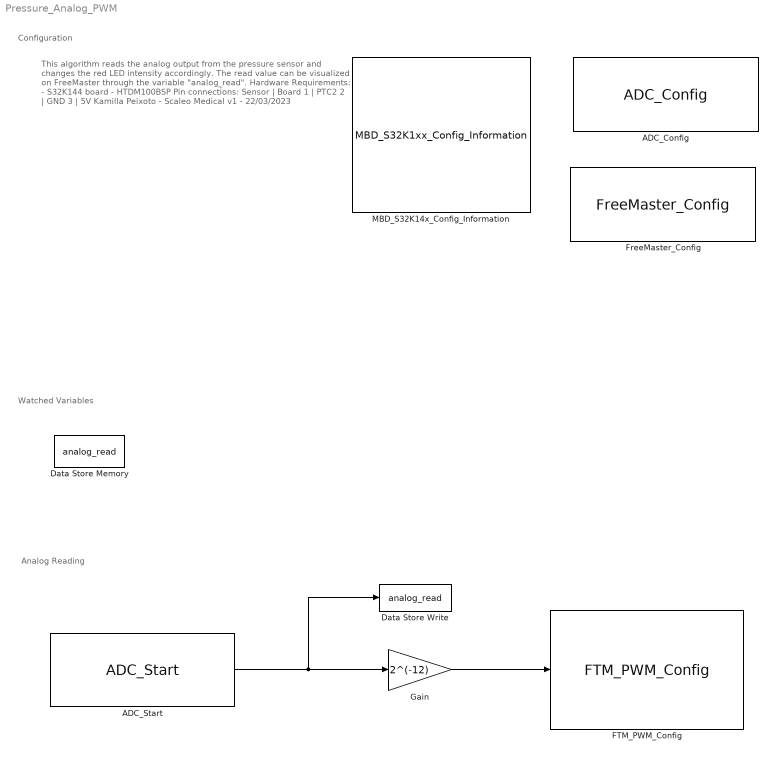
/*
 * Academic License - for use in teaching, academic research, and meeting
 * course requirements at degree granting institutions only.  Not for
 * government, commercial, or other organizational use.
 *
 * File: Pressure_Analog_PWM.c
 *
 * Code generated for Simulink model 'Pressure_Analog_PWM'.
 *
 * Model version                  : 1.37
 * Simulink Coder version         : 9.8 (R2022b) 13-May-2022
 * C/C++ source code generated on : Wed Mar 22 12:29:08 2023
 *
 * Target selection: mbd_s32k.tlc
 * Embedded hardware selection: ARM Compatible->ARM Cortex
 * Code generation objectives: Unspecified
 * Validation result: Not run
 */

#include "Pressure_Analog_PWM.h"
#include "rtwtypes.h"
#include "Pressure_Analog_PWM_private.h"

/* Exported block states */
uint32_T analog_read;                  /* '<Root>/Data Store Memory' */

/* Block signals (default storage) */
B_Pressure_Analog_PWM_T Pressure_Analog_PWM_B;

/* Real-time model */
static RT_MODEL_Pressure_Analog_PWM_T Pressure_Analog_PWM_M_;
RT_MODEL_Pressure_Analog_PWM_T *const Pressure_Analog_PWM_M =
  &Pressure_Analog_PWM_M_;

/* Model step function */
void Pressure_Analog_PWM_step(void)
{
  /* S-Function (adc_s32k_start): '<Root>/ADC_Start' */
  {
    adc_chan_config_t adc0_chan_cfg = {
      .interruptEnable = false,
      .channel = ADC_INPUTCHAN_EXT10
    };

    /* Initialize channel configuration of ADC0. */
    ADC_DRV_ConfigChan(0, 0, &adc0_chan_cfg);
    uint16_t result;

    /* Get conversion result of ADC0 */
    ADC_DRV_WaitConvDone(0);
    ADC_DRV_GetChanResult(0, 0, &result);
    Pressure_Analog_PWM_B.ADC_Start = result;
  }

  /* DataStoreWrite: '<Root>/Data Store Write' */
  analog_read = Pressure_Analog_PWM_B.ADC_Start;

  /* Gain: '<Root>/Gain' */
  Pressure_Analog_PWM_B.Gain = 0.000244140625F * (real32_T)
    Pressure_Analog_PWM_B.ADC_Start;

  /* S-Function (ftm_s32k_pwm_config): '<Root>/FTM_PWM_Config' */
  {
    uint16_t dutyA = FTM_MAX_DUTY_CYCLE * Pressure_Analog_PWM_B.Gain;
    FTM_DRV_UpdatePwmChannel(FTM_PWM0, 0U, FTM_PWM_UPDATE_IN_DUTY_CYCLE, dutyA,
      0, true);
  }
}
